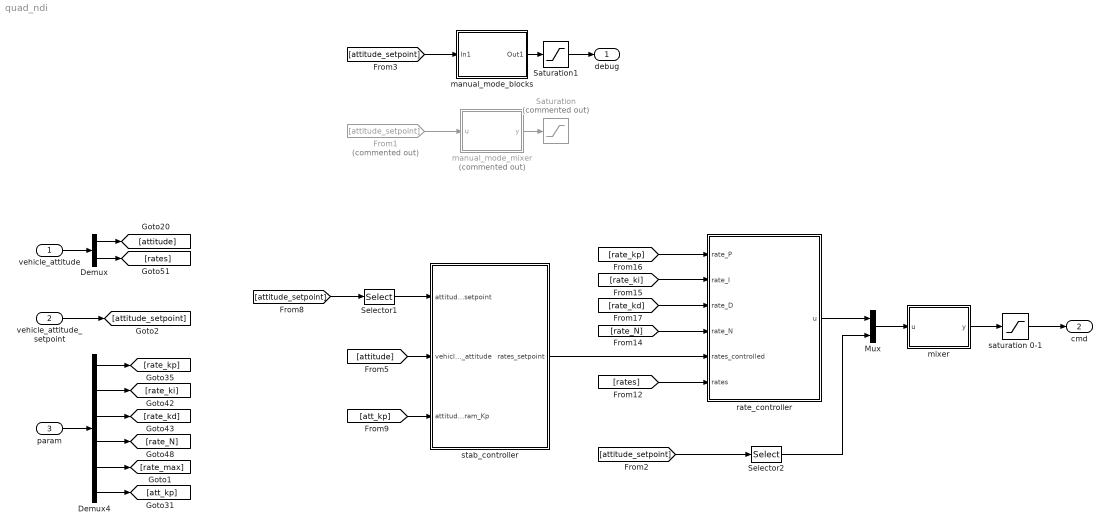
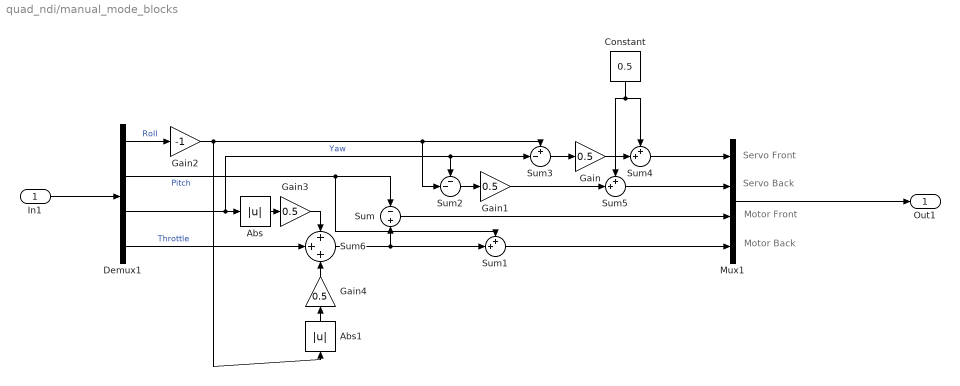
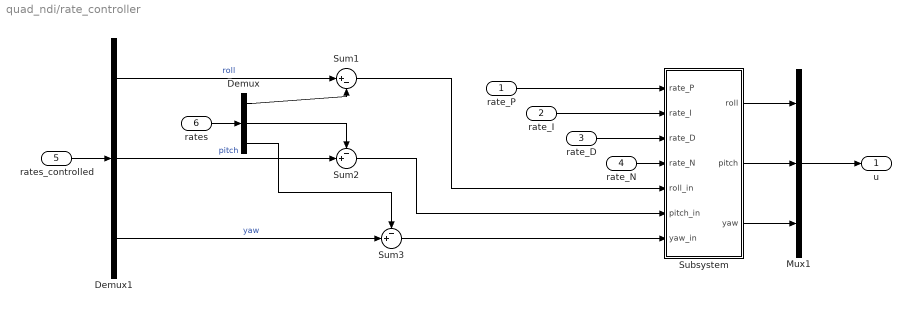
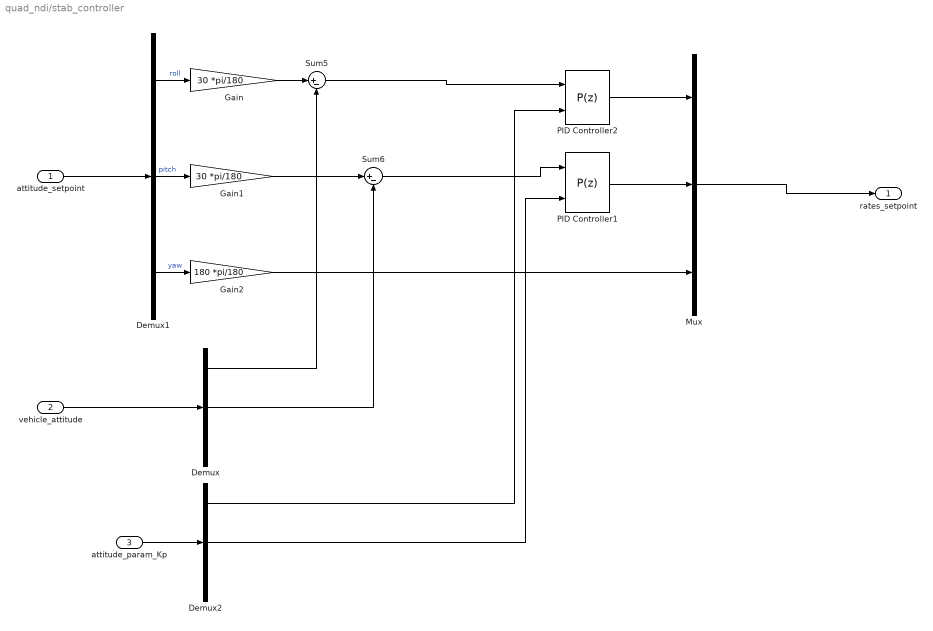
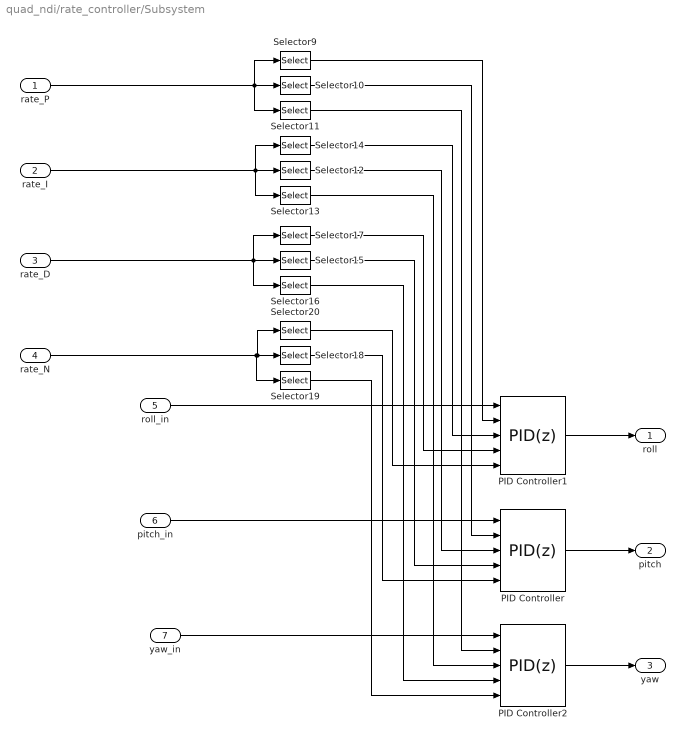
== matlab function quad_ndi/manual_mode_mixer ==
function y = fcn(u)

% Mixing Matrix
%     R  P  Y  T
M =  [-1  0 -1  0;  % s1
       1  0 -1  0;  % s2
       0  1  0  1;  % u1
       0 -1  0  1]; % u2

y = (M * u);

y(1) = 0.5 + 0.5 * y(1);
y(2) = 0.5 + 0.5 * y(2);
y;

== matlab function quad_ndi/mixer ==
function y = fcn(u)

% Mixing Matrix
%      R  P  Y  T
M =  [-1  0 -1  0;  % s1
       1  0 -1  0;  % s2
       0 -1  0  1;  % u1
       0  1  0  1]; % u2

% Mixing Matrix mit Steuergrößen multiplizieren   
y = (M * u);

% Servo Offset, da Servocommand 0 = 90° entspricht
y(1) = 0.5 + 0.5 * y(1);
y(2) = 0.5 + 0.5 * y(2);

y;

//
// Academic License - for use in teaching, academic research, and meeting
// course requirements at degree granting institutions only.  Not for
// government, commercial, or other organizational use.
//
// File: quad_ndi.cpp
//
// Code generated for Simulink model 'quad_ndi'.
//
// Model version                  : 1.644
// Simulink Coder version         : 8.13 (R2017b) 24-Jul-2017
// C/C++ source code generated on : Tue Mar 27 21:22:40 2018
//
// Target selection: ert.tlc
// Embedded hardware selection: ARM Compatible->ARM Cortex
// Code generation objectives:
//    1. Execution efficiency
//    2. RAM efficiency
// Validation result: Not run
//
#include "quad_ndi.h"

// Model step function
void quad_ndi_class::step(const real32_T arg_vehicle_attitude[6], const real32_T
  arg_vehicle_attitude_setpoint[4], const real32_T arg_param[18], real32_T
  arg_cmd[4], real32_T arg_debug[4])
{
  static const int8_T b[16] = { -1, 1, 0, 0, 0, 0, -1, 1, -1, -1, 0, 0, 0, 0, 1,
    1 };

  real32_T rtb_Sum2_n;
  real32_T rtb_Sum3;
  real32_T rtb_Sum2;
  real32_T rtb_Sum1;
  real32_T rtb_Sum3_f;
  real32_T rtb_NOut_e;
  real32_T rtb_y[4];
  int32_T i;
  real32_T rtb_Sum1_idx_0;
  real32_T rtb_Sum1_idx_1;
  real32_T rtb_Sum1_idx_2;
  real32_T rtb_y_d;

  // Sum: '<S1>/Sum6' incorporates:
  //   Abs: '<S1>/Abs'
  //   Abs: '<S1>/Abs1'
  //   Gain: '<S1>/Gain2'
  //   Gain: '<S1>/Gain3'
  //   Gain: '<S1>/Gain4'
  //   Inport: '<Root>/vehicle_attitude_setpoint'

  rtb_Sum1 = (0.5F * (real32_T)fabs((real_T)arg_vehicle_attitude_setpoint[2]) +
              arg_vehicle_attitude_setpoint[3]) + 0.5F * (real32_T)fabs((real_T)
    -arg_vehicle_attitude_setpoint[0]);

  // Sum: '<S1>/Sum' incorporates:
  //   Inport: '<Root>/vehicle_attitude_setpoint'

  rtb_Sum2_n = rtb_Sum1 - arg_vehicle_attitude_setpoint[1];

  // Sum: '<S1>/Sum1' incorporates:
  //   Inport: '<Root>/vehicle_attitude_setpoint'

  rtb_Sum1 += arg_vehicle_attitude_setpoint[1];

  // Sum: '<S1>/Sum4' incorporates:
  //   Constant: '<S1>/Constant'
  //   Gain: '<S1>/Gain'
  //   Gain: '<S1>/Gain2'
  //   Inport: '<Root>/vehicle_attitude_setpoint'
  //   Sum: '<S1>/Sum3'

  rtb_Sum3 = (-arg_vehicle_attitude_setpoint[0] - arg_vehicle_attitude_setpoint
              [2]) * 0.5F + 0.5F;

  // Saturate: '<Root>/Saturation1'
  if (rtb_Sum3 > 1.0F) {
    // Outport: '<Root>/debug'
    arg_debug[0] = 1.0F;
  } else if (rtb_Sum3 < 0.0F) {
    // Outport: '<Root>/debug'
    arg_debug[0] = 0.0F;
  } else {
    // Outport: '<Root>/debug'
    arg_debug[0] = rtb_Sum3;
  }

  // Sum: '<S1>/Sum5' incorporates:
  //   Constant: '<S1>/Constant'
  //   Gain: '<S1>/Gain1'
  //   Gain: '<S1>/Gain2'
  //   Inport: '<Root>/vehicle_attitude_setpoint'
  //   Sum: '<S1>/Sum2'

  rtb_Sum3 = ((0.0F - arg_vehicle_attitude_setpoint[2]) -
              (-arg_vehicle_attitude_setpoint[0])) * 0.5F + 0.5F;

  // Saturate: '<Root>/Saturation1'
  if (rtb_Sum3 > 1.0F) {
    // Outport: '<Root>/debug'
    arg_debug[1] = 1.0F;
  } else if (rtb_Sum3 < 0.0F) {
    // Outport: '<Root>/debug'
    arg_debug[1] = 0.0F;
  } else {
    // Outport: '<Root>/debug'
    arg_debug[1] = rtb_Sum3;
  }

  if (rtb_Sum2_n > 1.0F) {
    // Outport: '<Root>/debug'
    arg_debug[2] = 1.0F;
  } else if (rtb_Sum2_n < 0.0F) {
    // Outport: '<Root>/debug'
    arg_debug[2] = 0.0F;
  } else {
    // Outport: '<Root>/debug'
    arg_debug[2] = rtb_Sum2_n;
  }

  if (rtb_Sum1 > 1.0F) {
    // Outport: '<Root>/debug'
    arg_debug[3] = 1.0F;
  } else if (rtb_Sum1 < 0.0F) {
    // Outport: '<Root>/debug'
    arg_debug[3] = 0.0F;
  } else {
    // Outport: '<Root>/debug'
    arg_debug[3] = rtb_Sum1;
  }

  // Outputs for Atomic SubSystem: '<Root>/stab_controller'
  // Sum: '<S4>/Sum1' incorporates:
  //   Gain: '<S5>/Gain'
  //   Inport: '<Root>/param'
  //   Inport: '<Root>/vehicle_attitude'
  //   Inport: '<Root>/vehicle_attitude_setpoint'
  //   Product: '<S11>/POut'
  //   Sum: '<S5>/Sum5'

  rtb_Sum1 = (0.52359879F * arg_vehicle_attitude_setpoint[0] -
              arg_vehicle_attitude[0]) * arg_param[15] - arg_vehicle_attitude[3];

  // End of Outputs for SubSystem: '<Root>/stab_controller'

  // Product: '<S8>/NOut' incorporates:
  //   DiscreteIntegrator: '<S8>/Filter'
  //   Inport: '<Root>/param'
  //   Product: '<S8>/DOut'
  //   Sum: '<S8>/SumD'

  rtb_Sum3 = (rtb_Sum1 * arg_param[6] - rtDW.Filter_DSTATE) * arg_param[9];

  // Outputs for Atomic SubSystem: '<Root>/stab_controller'
  // Sum: '<S4>/Sum2' incorporates:
  //   Gain: '<S5>/Gain1'
  //   Inport: '<Root>/param'
  //   Inport: '<Root>/vehicle_attitude'
  //   Inport: '<Root>/vehicle_attitude_setpoint'
  //   Product: '<S10>/POut'
  //   Sum: '<S5>/Sum6'

  rtb_Sum2_n = (0.52359879F * arg_vehicle_attitude_setpoint[1] -
                arg_vehicle_attitude[1]) * arg_param[16] - arg_vehicle_attitude
    [4];

  // End of Outputs for SubSystem: '<Root>/stab_controller'

  // Product: '<S7>/NOut' incorporates:
  //   DiscreteIntegrator: '<S7>/Filter'
  //   Inport: '<Root>/param'
  //   Product: '<S7>/DOut'
  //   Sum: '<S7>/SumD'

  rtb_Sum2 = (rtb_Sum2_n * arg_param[7] - rtDW.Filter_DSTATE_n) * arg_param[10];

  // Outputs for Atomic SubSystem: '<Root>/stab_controller'
  // Sum: '<S4>/Sum3' incorporates:
  //   Gain: '<S5>/Gain2'
  //   Inport: '<Root>/vehicle_attitude'
  //   Inport: '<Root>/vehicle_attitude_setpoint'

  rtb_Sum3_f = 3.14159274F * arg_vehicle_attitude_setpoint[2] -
    arg_vehicle_attitude[5];

  // End of Outputs for SubSystem: '<Root>/stab_controller'

  // Product: '<S9>/NOut' incorporates:
  //   DiscreteIntegrator: '<S9>/Filter'
  //   Inport: '<Root>/param'
  //   Product: '<S9>/DOut'
  //   Sum: '<S9>/SumD'

  rtb_NOut_e = (rtb_Sum3_f * arg_param[8] - rtDW.Filter_DSTATE_a) * arg_param[11];

  // SignalConversion: '<S3>/TmpSignal ConversionAt SFunction Inport1' incorporates:
  //   DiscreteIntegrator: '<S7>/Integrator'
  //   DiscreteIntegrator: '<S8>/Integrator'
  //   DiscreteIntegrator: '<S9>/Integrator'
  //   Inport: '<Root>/param'
  //   MATLAB Function: '<Root>/mixer'
  //   Product: '<S7>/POut'
  //   Product: '<S8>/POut'
  //   Product: '<S9>/POut'
  //   Sum: '<S7>/Sum'
  //   Sum: '<S8>/Sum'
  //   Sum: '<S9>/Sum'

  // MATLAB Function 'mixer': '<S3>:1'
  // '<S3>:1:11'
  rtb_Sum1_idx_0 = (rtb_Sum1 * arg_param[0] + rtDW.Integrator_DSTATE) + rtb_Sum3;
  rtb_Sum1_idx_1 = (rtb_Sum2_n * arg_param[1] + rtDW.Integrator_DSTATE_m) +
    rtb_Sum2;
  rtb_Sum1_idx_2 = (rtb_Sum3_f * arg_param[2] + rtDW.Integrator_DSTATE_d) +
    rtb_NOut_e;

  // MATLAB Function: '<Root>/mixer' incorporates:
  //   Inport: '<Root>/vehicle_attitude_setpoint'
  //   SignalConversion: '<S3>/TmpSignal ConversionAt SFunction Inport1'

  for (i = 0; i < 4; i++) {
    rtb_y_d = (real32_T)b[i + 12] * arg_vehicle_attitude_setpoint[3] +
      ((real32_T)b[i + 8] * rtb_Sum1_idx_2 + ((real32_T)b[i + 4] *
        rtb_Sum1_idx_1 + (real32_T)b[i] * rtb_Sum1_idx_0));
    rtb_y[i] = rtb_y_d;
  }

  // '<S3>:1:14'
  rtb_y[0] = 0.5F * rtb_y[0] + 0.5F;

  // '<S3>:1:15'
  rtb_y[1] = 0.5F * rtb_y[1] + 0.5F;

  // Saturate: '<Root>/saturation 0-1'
  if (rtb_y[0] > 1.0F) {
    // Outport: '<Root>/cmd'
    arg_cmd[0] = 1.0F;
  } else if (rtb_y[0] < 0.0F) {
    // Outport: '<Root>/cmd'
    arg_cmd[0] = 0.0F;
  } else {
    // Outport: '<Root>/cmd'
    arg_cmd[0] = rtb_y[0];
  }

  if (rtb_y[1] > 1.0F) {
    // Outport: '<Root>/cmd'
    arg_cmd[1] = 1.0F;
  } else if (rtb_y[1] < 0.0F) {
    // Outport: '<Root>/cmd'
    arg_cmd[1] = 0.0F;
  } else {
    // Outport: '<Root>/cmd'
    arg_cmd[1] = rtb_y[1];
  }

  if (rtb_y[2] > 1.0F) {
    // Outport: '<Root>/cmd'
    arg_cmd[2] = 1.0F;
  } else if (rtb_y[2] < 0.0F) {
    // Outport: '<Root>/cmd'
    arg_cmd[2] = 0.0F;
  } else {
    // Outport: '<Root>/cmd'
    arg_cmd[2] = rtb_y[2];
  }

  if (rtb_y[3] > 1.0F) {
    // Outport: '<Root>/cmd'
    arg_cmd[3] = 1.0F;
  } else if (rtb_y[3] < 0.0F) {
    // Outport: '<Root>/cmd'
    arg_cmd[3] = 0.0F;
  } else {
    // Outport: '<Root>/cmd'
    arg_cmd[3] = rtb_y[3];
  }

  // End of Saturate: '<Root>/saturation 0-1'

  // Update for DiscreteIntegrator: '<S8>/Integrator' incorporates:
  //   Inport: '<Root>/param'
  //   Product: '<S8>/IOut'

  rtDW.Integrator_DSTATE += rtb_Sum1 * arg_param[3] * 0.004F;

  // Update for DiscreteIntegrator: '<S8>/Filter'
  rtDW.Filter_DSTATE += 0.004F * rtb_Sum3;

  // Update for DiscreteIntegrator: '<S7>/Integrator' incorporates:
  //   Inport: '<Root>/param'
  //   Product: '<S7>/IOut'

  rtDW.Integrator_DSTATE_m += rtb_Sum2_n * arg_param[4] * 0.004F;

  // Update for DiscreteIntegrator: '<S7>/Filter'
  rtDW.Filter_DSTATE_n += 0.004F * rtb_Sum2;

  // Update for DiscreteIntegrator: '<S9>/Integrator' incorporates:
  //   Inport: '<Root>/param'
  //   Product: '<S9>/IOut'

  rtDW.Integrator_DSTATE_d += rtb_Sum3_f * arg_param[5] * 0.004F;

  // Update for DiscreteIntegrator: '<S9>/Filter'
  rtDW.Filter_DSTATE_a += 0.004F * rtb_NOut_e;
}
